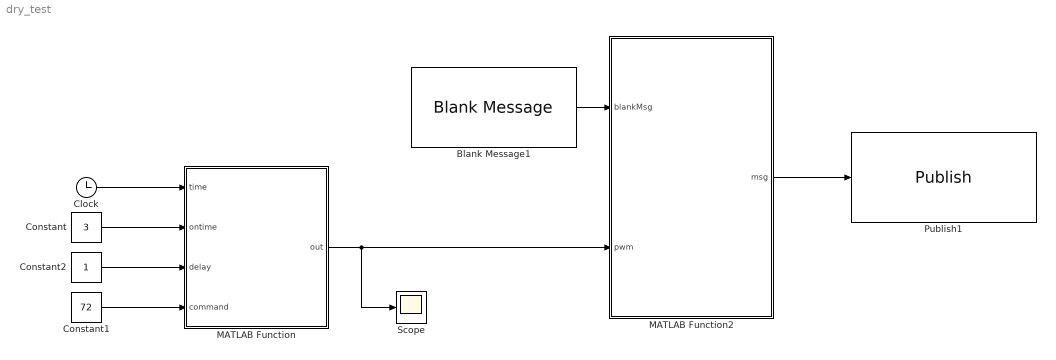
== matlab function dry_test/MATLAB Function ==
function out = DryTest(time, ontime,delay, command)
out=repmat(1500,8,1);
for i=1:8
    if time>ontime*(i-1)+((i)*delay) && time<ontime*(i)+(i*delay)
       out(i)= out(i)+command;
    end
end

== matlab function dry_test/MATLAB Function2 ==
function msg = assignThrusterPwm(blankMsg, pwm)
msg = blankMsg;
msg.Data(1:8) = cast(pwm, 'uint16');
msg.Data_SL_Info.CurrentLength = uint32(8);

//
// Academic License - for use in teaching, academic research, and meeting
// course requirements at degree granting institutions only.  Not for
// government, commercial, or other organizational use.
//
// File: dry_test.cpp
//
// Code generated for Simulink model 'dry_test'.
//
// Model version                  : 1.25
// Simulink Coder version         : 9.3 (R2020a) 18-Nov-2019
// C/C++ source code generated on : Tue Mar 16 18:20:46 2021
//
// Target selection: ert.tlc
// Embedded hardware selection: Intel->x86-32 (Windows32)
// Code generation objectives: Unspecified
// Validation result: Not run
//
#include "dry_test.h"
#include "dry_test_private.h"

// Block signals (default storage)
B_dry_test_T dry_test_B;

// Block states (default storage)
DW_dry_test_T dry_test_DW;

// Real-time model
RT_MODEL_dry_test_T dry_test_M_ = RT_MODEL_dry_test_T();
RT_MODEL_dry_test_T *const dry_test_M = &dry_test_M_;

// Forward declaration for local functions
static void matlabCodegenHandle_matlabCodeg(ros_slros_internal_block_Publ_T *obj);
real_T rt_roundd_snf(real_T u)
{
  real_T y;
  if (fabs(u) < 4.503599627370496E+15) {
    if (u >= 0.5) {
      y = floor(u + 0.5);
    } else if (u > -0.5) {
      y = u * 0.0;
    } else {
      y = ceil(u - 0.5);
    }
  } else {
    y = u;
  }

  return y;
}

static void matlabCodegenHandle_matlabCodeg(ros_slros_internal_block_Publ_T *obj)
{
  if (!obj->matlabCodegenIsDeleted) {
    obj->matlabCodegenIsDeleted = true;
  }
}

// Model step function
void dry_test_step(void)
{
  real_T rtb_Clock;
  int32_T i;
  real_T rtb_out;
  real_T tmp;

  // Clock: '<Root>/Clock'
  rtb_Clock = dry_test_M->Timing.t[0];

  // MATLAB Function: '<Root>/MATLAB Function2' incorporates:
  //   Constant: '<S1>/Constant'

  dry_test_B.msg = dry_test_P.Constant_Value;
  for (i = 0; i < 8; i++) {
    // MATLAB Function: '<Root>/MATLAB Function' incorporates:
    //   Constant: '<Root>/Constant'
    //   Constant: '<Root>/Constant1'
    //   Constant: '<Root>/Constant2'

    rtb_out = 1500.0;
    tmp = (static_cast<real_T>(i) + 1.0) * dry_test_P.Constant2_Value;
    if ((rtb_Clock > ((static_cast<real_T>(i) + 1.0) - 1.0) *
         dry_test_P.Constant_Value_j + tmp) && (rtb_Clock < (static_cast<real_T>
          (i) + 1.0) * dry_test_P.Constant_Value_j + tmp)) {
      rtb_out = dry_test_P.Constant1_Value + 1500.0;
    }

    // End of MATLAB Function: '<Root>/MATLAB Function'

    // MATLAB Function: '<Root>/MATLAB Function2'
    tmp = rt_roundd_snf(rtb_out);
    if (tmp < 65536.0) {
      if (tmp >= 0.0) {
        dry_test_B.msg.Data[i] = static_cast<uint16_T>(tmp);
      } else {
        dry_test_B.msg.Data[i] = 0U;
      }
    } else {
      dry_test_B.msg.Data[i] = MAX_uint16_T;
    }
  }

  // MATLAB Function: '<Root>/MATLAB Function2'
  dry_test_B.msg.Data_SL_Info.CurrentLength = 8U;

  // Outputs for Atomic SubSystem: '<Root>/Publish1'
  // MATLABSystem: '<S4>/SinkBlock'
  Pub_dry_test_24.publish(&dry_test_B.msg);

  // End of Outputs for SubSystem: '<Root>/Publish1'

  // Update absolute time for base rate
  // The "clockTick0" counts the number of times the code of this task has
  //  been executed. The absolute time is the multiplication of "clockTick0"
  //  and "Timing.stepSize0". Size of "clockTick0" ensures timer will not
  //  overflow during the application lifespan selected.

  dry_test_M->Timing.t[0] =
    ((time_T)(++dry_test_M->Timing.clockTick0)) * dry_test_M->Timing.stepSize0;

  {
    // Update absolute timer for sample time: [0.1s, 0.0s]
    // The "clockTick1" counts the number of times the code of this task has
    //  been executed. The resolution of this integer timer is 0.1, which is the step size
    //  of the task. Size of "clockTick1" ensures timer will not overflow during the
    //  application lifespan selected.

    dry_test_M->Timing.clockTick1++;
  }
}
